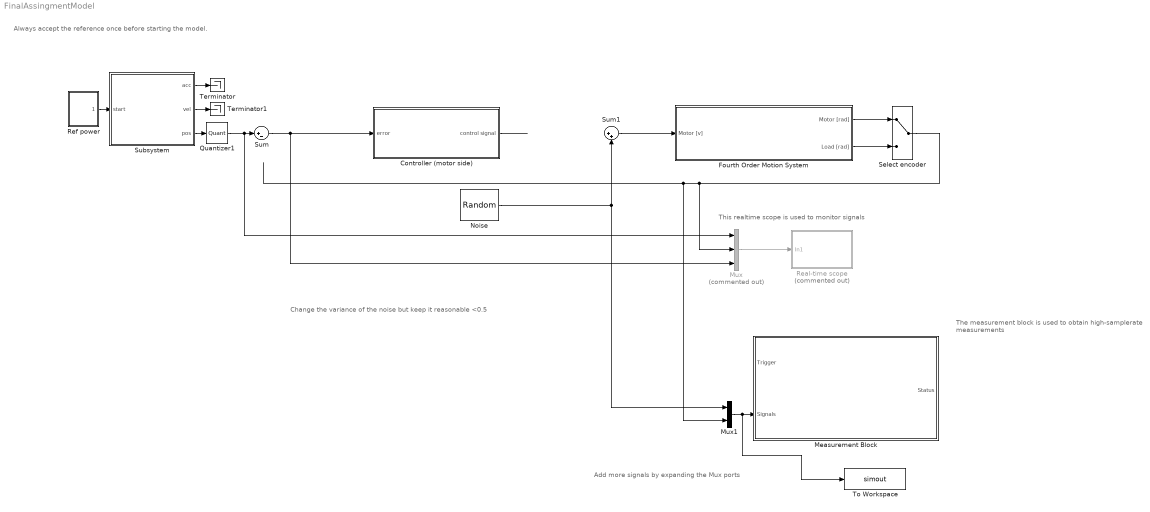
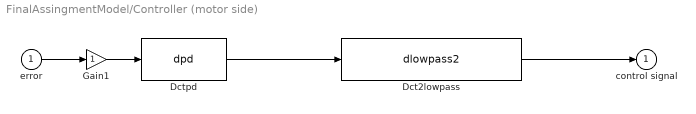
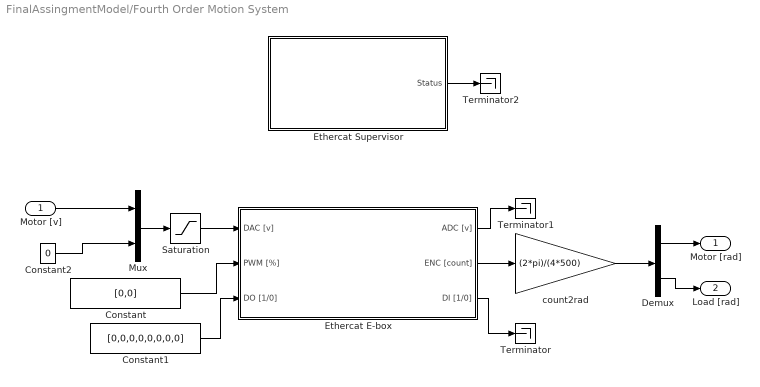
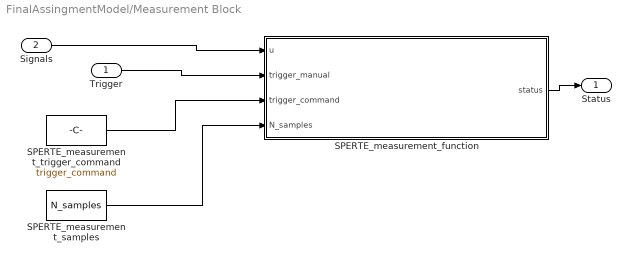
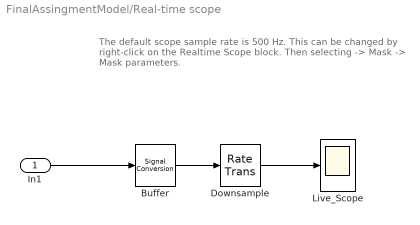
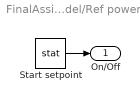
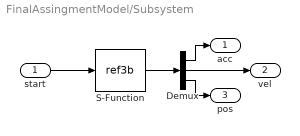
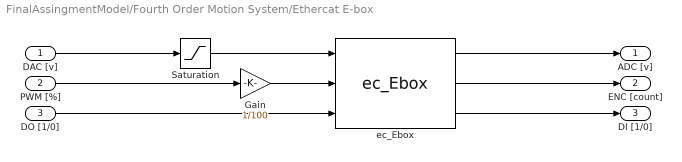
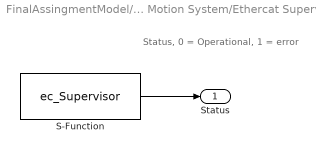
== matlab function FinalAssingmentModel/Measurement Block/SPERTE_measurement_function ==
function status = perform_measurement(u, trigger_manual, trigger_command, triggertype, N_samples)

%% Persistent variables
persistent fileID NF busy NS

% Init parameters
if isempty(NF)
    NF = int16(0);
end
if isempty(NS)
    NS = uint32(0);
end
if isempty(fileID)
    fileID = 0;
end
if isempty(busy)
    busy = uint8(0);
end

%% Check the triggers
if ( (triggertype == 0 && trigger_manual == 1) || (triggertype == 1 && trigger_command == 1) || (triggertype == 2 && (trigger_command == 1 || trigger_manual == 1) ) )
    if busy == 1
        % We are already busy, nothing to do
    else
        % We should start a new one
        fileID = fopen(sprintf('measurement_%d.bin',NF),'w');  
        NF = NF + 1;
        busy = uint8(1);
        NS = uint32(0);
    end
end

% We have started a measurement
if busy == 1
    if NS < N_samples 
        % Here we write the sample, in single precision float
        fwrite(fileID,u,'single');
        NS = NS + uint32(1);
    else
       % We have N samples already, we are done
       fclose(fileID);
       busy = uint8(0);
       NS = uint32(0);
    end
      
end
    % Output state
    status = uint8(busy);
end

/*
 * FinalAssingmentModel.c
 *
 * Academic License - for use in teaching, academic research, and meeting
 * course requirements at degree granting institutions only.  Not for
 * government, commercial, or other organizational use.
 *
 * Code generation for model "FinalAssingmentModel".
 *
 * Model version              : 7.2
 * Simulink Coder version : 9.6 (R2021b) 14-May-2021
 * C source code generated on : Wed Mar 26 12:49:07 2025
 *
 * Target selection: ert.tlc
 * Note: GRT includes extra infrastructure and instrumentation for prototyping
 * Embedded hardware selection: ARM Compatible->ARM Cortex
 * Code generation objectives: Unspecified
 * Validation result: Not run
 */

#include "FinalAssingmentModel.h"
#include "FinalAssingmentModel_private.h"
#include "FinalAssingmentModel_dt.h"

/* Block signals (default storage) */
B_FinalAssingmentModel_T FinalAssingmentModel_B;

/* Block states (default storage) */
DW_FinalAssingmentModel_T FinalAssingmentModel_DW;

/* Real-time model */
static RT_MODEL_FinalAssingmentModel_T FinalAssingmentModel_M_;
RT_MODEL_FinalAssingmentModel_T *const FinalAssingmentModel_M =
  &FinalAssingmentModel_M_;

/* Forward declaration for local functions */
static void FinalAssingmentM_emxInit_char_T(emxArray_char_T_FinalAssingme_T
  **pEmxArray, int32_T numDimensions);
static void FinalA_emxEnsureCapacity_char_T(emxArray_char_T_FinalAssingme_T
  *emxArray, int32_T oldNumel);
static void FinalAssingmentM_emxFree_char_T(emxArray_char_T_FinalAssingme_T
  **pEmxArray);
static int8_T FinalAssingmentModel_filedata(void);
static int8_T FinalAssingmentModel_cfopen(const emxArray_char_T_FinalAssingme_T *
  cfilename, const char_T *cpermission);
static int32_T FinalAssingmentModel_cfclose(real_T fid);
static void rate_monotonic_scheduler(void);

/*
 * Set which subrates need to run this base step (base rate always runs).
 * This function must be called prior to calling the model step function
 * in order to "remember" which rates need to run this base step.  The
 * buffering of events allows for overlapping preemption.
 */
void FinalAssingmentModel_SetEventsForThisBaseStep(boolean_T *eventFlags)
{
  /* Task runs when its counter is zero, computed via rtmStepTask macro */
  eventFlags[2] = ((boolean_T)rtmStepTask(FinalAssingmentModel_M, 2));
}

/*
 *         This function updates active task flag for each subrate
 *         and rate transition flags for tasks that exchange data.
 *         The function assumes rate-monotonic multitasking scheduler.
 *         The function must be called at model base rate so that
 *         the generated code self-manages all its subrates and rate
 *         transition flags.
 */
static void rate_monotonic_scheduler(void)
{
  /* To ensure a deterministic data transfer between two rates,
   * data is transferred at the priority of a fast task and the frequency
   * of the slow task.  The following flags indicate when the data transfer
   * happens.  That is, a rate interaction flag is set true when both rates
   * will run, and false otherwise.
   */

  /* tid 1 shares data with slower tid rate: 2 */
  if (FinalAssingmentModel_M->Timing.TaskCounters.TID[1] == 0) {
    FinalAssingmentModel_M->Timing.RateInteraction.TID1_2 =
      (FinalAssingmentModel_M->Timing.TaskCounters.TID[2] == 0);

    /* update PerTaskSampleHits matrix for non-inline sfcn */
    FinalAssingmentModel_M->Timing.perTaskSampleHits[5] =
      FinalAssingmentModel_M->Timing.RateInteraction.TID1_2;
  }

  /* Compute which subrates run during the next base time step.  Subrates
   * are an integer multiple of the base rate counter.  Therefore, the subtask
   * counter is reset when it reaches its limit (zero means run).
   */
  (FinalAssingmentModel_M->Timing.TaskCounters.TID[2])++;
  if ((FinalAssingmentModel_M->Timing.TaskCounters.TID[2]) > 7) {/* Sample time: [0.002s, 0.0s] */
    FinalAssingmentModel_M->Timing.TaskCounters.TID[2] = 0;
  }
}

real_T rt_urand_Upu32_Yd_f_pw_snf(uint32_T *u)
{
  uint32_T hi;
  uint32_T lo;

  /* Uniform random number generator (random number between 0 and 1)

     #define IA      16807                      magic multiplier = 7^5
     #define IM      2147483647                 modulus = 2^31-1
     #define IQ      127773                     IM div IA
     #define IR      2836                       IM modulo IA
     #define S       4.656612875245797e-10      reciprocal of 2^31-1
     test = IA * (seed % IQ) - IR * (seed/IQ)
     seed = test < 0 ? (test + IM) : test
     return (seed*S)
   */
  lo = *u % 127773U * 16807U;
  hi = *u / 127773U * 2836U;
  if (lo < hi) {
    *u = 2147483647U - (hi - lo);
  } else {
    *u = lo - hi;
  }

  return (real_T)*u * 4.6566128752457969E-10;
}

real_T rt_nrand_Upu32_Yd_f_pw_snf(uint32_T *u)
{
  real_T si;
  real_T sr;
  real_T y;

  /* Normal (Gaussian) random number generator */
  do {
    sr = 2.0 * rt_urand_Upu32_Yd_f_pw_snf(u) - 1.0;
    si = 2.0 * rt_urand_Upu32_Yd_f_pw_snf(u) - 1.0;
    si = sr * sr + si * si;
  } while (si > 1.0);

  y = sqrt(-2.0 * log(si) / si) * sr;
  return y;
}

static void FinalAssingmentM_emxInit_char_T(emxArray_char_T_FinalAssingme_T
  **pEmxArray, int32_T numDimensions)
{
  emxArray_char_T_FinalAssingme_T *emxArray;
  int32_T i;
  *pEmxArray = (emxArray_char_T_FinalAssingme_T *)malloc(sizeof
    (emxArray_char_T_FinalAssingme_T));
  emxArray = *pEmxArray;
  emxArray->data = (char_T *)NULL;
  emxArray->numDimensions = numDimensions;
  emxArray->size = (int32_T *)malloc(sizeof(int32_T) * numDimensions);
  emxArray->allocatedSize = 0;
  emxArray->canFreeData = true;
  for (i = 0; i < numDimensions; i++) {
    emxArray->size[i] = 0;
  }
}

static void FinalA_emxEnsureCapacity_char_T(emxArray_char_T_FinalAssingme_T
  *emxArray, int32_T oldNumel)
{
  int32_T i;
  int32_T newNumel;
  void *newData;
  if (oldNumel < 0) {
    oldNumel = 0;
  }

  newNumel = 1;
  for (i = 0; i < emxArray->numDimensions; i++) {
    newNumel *= emxArray->size[i];
  }

  if (newNumel > emxArray->allocatedSize) {
    i = emxArray->allocatedSize;
    if (i < 16) {
      i = 16;
    }

    while (i < newNumel) {
      if (i > 1073741823) {
        i = MAX_int32_T;
      } else {
        i <<= 1;
      }
    }

    newData = calloc((uint32_T)i, sizeof(char_T));
    if (emxArray->data != NULL) {
      memcpy(newData, emxArray->data, sizeof(char_T) * oldNumel);
      if (emxArray->canFreeData) {
        free(emxArray->data);
      }
    }

    emxArray->data = (char_T *)newData;
    emxArray->allocatedSize = i;
    emxArray->canFreeData = true;
  }
}

static void FinalAssingmentM_emxFree_char_T(emxArray_char_T_FinalAssingme_T
  **pEmxArray)
{
  if (*pEmxArray != (emxArray_char_T_FinalAssingme_T *)NULL) {
    if (((*pEmxArray)->data != (char_T *)NULL) && (*pEmxArray)->canFreeData) {
      free((*pEmxArray)->data);
    }

    free((*pEmxArray)->size);
    free(*pEmxArray);
    *pEmxArray = (emxArray_char_T_FinalAssingme_T *)NULL;
  }
}

/* Function for MATLAB Function: '<S3>/SPERTE_measurement_function' */
static int8_T FinalAssingmentModel_filedata(void)
{
  int32_T k;
  int8_T f;
  boolean_T exitg1;
  f = 0;
  k = 1;
  exitg1 = false;
  while ((!exitg1) && (k - 1 < 20)) {
    if (FinalAssingmentModel_DW.eml_openfiles[(int8_T)k - 1] == NULL) {
      f = (int8_T)k;
      exitg1 = true;
    } else {
      k++;
    }
  }

  return f;
}

/* Function for MATLAB Function: '<S3>/SPERTE_measurement_function' */
static int8_T FinalAssingmentModel_cfopen(const emxArray_char_T_FinalAssingme_T *
  cfilename, const char_T *cpermission)
{
  emxArray_char_T_FinalAssingme_T *ccfilename;
  int32_T i;
  int32_T loop_ub;
  int8_T fileid;
  int8_T j;
  fileid = -1;
  j = FinalAssingmentModel_filedata();
  if (j >= 1) {
    FinalAssingmentM_emxInit_char_T(&ccfilename, 2);
    i = ccfilename->size[0] * ccfilename->size[1];
    ccfilename->size[0] = 1;
    ccfilename->size[1] = cfilename->size[1] + 1;
    FinalA_emxEnsureCapacity_char_T(ccfilename, i);
    loop_ub = cfilename->size[1];
    for (i = 0; i < loop_ub; i++) {
      ccfilename->data[i] = cfilename->data[i];
    }

    ccfilename->data[cfilename->size[1]] = '\x00';
    FinalAssingmentModel_B.filestar_m = fopen(&ccfilename->data[0], cpermission);
    FinalAssingmentM_emxFree_char_T(&ccfilename);
    if (FinalAssingmentModel_B.filestar_m != NULL) {
      FinalAssingmentModel_DW.eml_openfiles[j - 1] =
        FinalAssingmentModel_B.filestar_m;
      FinalAssingmentModel_DW.eml_autoflush[j - 1] = true;
      i = j + 2;
      if (j + 2 > 127) {
        i = 127;
      }

      fileid = (int8_T)i;
    }
  }

  return fileid;
}

real_T rt_roundd_snf(real_T u)
{
  real_T y;
  if (fabs(u) < 4.503599627370496E+15) {
    if (u >= 0.5) {
      y = floor(u + 0.5);
    } else if (u > -0.5) {
      y = u * 0.0;
    } else {
      y = ceil(u - 0.5);
    }
  } else {
    y = u;
  }

  return y;
}

/* Function for MATLAB Function: '<S3>/SPERTE_measurement_function' */
static int32_T FinalAssingmentModel_cfclose(real_T fid)
{
  FILE* filestar;
  int32_T cst;
  int32_T st;
  int8_T b_fileid;
  int8_T fileid;
  st = -1;
  fileid = (int8_T)rt_roundd_snf(fid);
  if ((fileid < 0) || (fid != fileid)) {
    fileid = -1;
  }

  b_fileid = fileid;
  if (fileid < 0) {
    b_fileid = -1;
  }

  if (b_fileid >= 3) {
    filestar = FinalAssingmentModel_DW.eml_openfiles[b_fileid - 3];
  } else if (b_fileid == 0) {
    filestar = stdin;
  } else if (b_fileid == 1) {
    filestar = stdout;
  } else if (b_fileid == 2) {
    filestar = stderr;
  } else {
    filestar = NULL;
  }

  if ((filestar != NULL) && (fileid >= 3)) {
    cst = fclose(filestar);
    if (cst == 0) {
      st = 0;
      FinalAssingmentModel_DW.eml_openfiles[fileid - 3] = NULL;
      FinalAssingmentModel_DW.eml_autoflush[fileid - 3] = true;
    }
  }

  return st;
}

/* Model step function for TID0 */
void FinalAssingmentModel_step0(void)  /* Sample time: [0.0s, 0.0s] */
{
  emxArray_char_T_FinalAssingme_T *charStr;
  emxArray_char_T_FinalAssingme_T *charStr_0;
  int32_T tmp;
  uint32_T qY;
  int8_T b_fileid;
  boolean_T autoflush;

  {                                    /* Sample time: [0.0s, 0.0s] */
    rate_monotonic_scheduler();
  }

  /* RandomNumber: '<Root>/Noise' */
  FinalAssingmentModel_B.Noise = FinalAssingmentModel_DW.NextOutput;

  /* S-Function (ec_Supervisor): '<S8>/S-Function' */

  /* Level2 S-Function Block: '<S8>/S-Function' (ec_Supervisor) */
  {
    SimStruct *rts = FinalAssingmentModel_M->childSfunctions[0];
    sfcnOutputs(rts,0);
  }

  /* S-Function (ec_Ebox): '<S7>/ec_Ebox' */

  /* Level2 S-Function Block: '<S7>/ec_Ebox' (ec_Ebox) */
  {
    SimStruct *rts = FinalAssingmentModel_M->childSfunctions[1];
    sfcnOutputs(rts,0);
  }

  /* ManualSwitch: '<Root>/Select encoder' */
  if (FinalAssingmentModel_P.Selectencoder_CurrentSetting == 1) {
    /* ManualSwitch: '<Root>/Select encoder' incorporates:
     *  Gain: '<S2>/count2rad'
     */
    FinalAssingmentModel_B.Selectencoder = FinalAssingmentModel_P.count2rad_Gain
      * FinalAssingmentModel_B.ec_Ebox_o2[0];
  } else {
    /* ManualSwitch: '<Root>/Select encoder' incorporates:
     *  Gain: '<S2>/count2rad'
     */
    FinalAssingmentModel_B.Selectencoder = FinalAssingmentModel_P.count2rad_Gain
      * FinalAssingmentModel_B.ec_Ebox_o2[1];
  }

  /* End of ManualSwitch: '<Root>/Select encoder' */

  /* MATLAB Function: '<S3>/SPERTE_measurement_function' incorporates:
   *  Constant: '<S3>/SPERTE_measurement_samples'
   *  Constant: '<S3>/SPERTE_measurement_trigger_command'
   *  SignalConversion generated from: '<S9>/ SFunction '
   */
  if ((((FinalAssingmentModel_P.MeasurementBlock_triggertype == 1) &&
        (FinalAssingmentModel_P.MeasurementBlock_trigger_comman == 1)) ||
       ((FinalAssingmentModel_P.MeasurementBlock_triggertype == 2) &&
        (FinalAssingmentModel_P.MeasurementBlock_trigger_comman == 1))) &&
      (FinalAssingmentModel_DW.busy != 1)) {
    FinalAssingmentM_emxInit_char_T(&charStr, 2);
    FinalAssingmentModel_B.nbytes = (int32_T)snprintf(NULL, 0,
      "measurement_%d.bin", FinalAssingmentModel_DW.NF) + 1;
    tmp = charStr->size[0] * charStr->size[1];
    charStr->size[0] = 1;
    charStr->size[1] = FinalAssingmentModel_B.nbytes;
    FinalA_emxEnsureCapacity_char_T(charStr, tmp);
    snprintf(&charStr->data[0], (size_t)FinalAssingmentModel_B.nbytes,
             "measurement_%d.bin", FinalAssingmentModel_DW.NF);
    if (1 > FinalAssingmentModel_B.nbytes - 1) {
      FinalAssingmentModel_B.loop_ub = -1;
    } else {
      FinalAssingmentModel_B.loop_ub = FinalAssingmentModel_B.nbytes - 2;
    }

    FinalAssingmentM_emxInit_char_T(&charStr_0, 2);
    tmp = charStr_0->size[0] * charStr_0->size[1];
    charStr_0->size[0] = 1;
    charStr_0->size[1] = FinalAssingmentModel_B.loop_ub + 1;
    FinalA_emxEnsureCapacity_char_T(charStr_0, tmp);
    for (FinalAssingmentModel_B.nbytes = 0; FinalAssingmentModel_B.nbytes <=
         FinalAssingmentModel_B.loop_ub; FinalAssingmentModel_B.nbytes++) {
      charStr_0->data[FinalAssingmentModel_B.nbytes] = charStr->
        data[FinalAssingmentModel_B.nbytes];
    }

    FinalAssingmentM_emxFree_char_T(&charStr);
    b_fileid = FinalAssingmentModel_cfopen(charStr_0, "wb");
    FinalAssingmentModel_DW.fileID = b_fileid;
    FinalAssingmentModel_B.nbytes = FinalAssingmentModel_DW.NF + 1;
    FinalAssingmentM_emxFree_char_T(&charStr_0);
    if (FinalAssingmentModel_DW.NF + 1 > 32767) {
      FinalAssingmentModel_B.nbytes = 32767;
    }

    FinalAssingmentModel_DW.NF = (int16_T)FinalAssingmentModel_B.nbytes;
    FinalAssingmentModel_DW.busy = 1U;
    FinalAssingmentModel_DW.NS = 0U;
  }

  if (FinalAssingmentModel_DW.busy == 1) {
    if (FinalAssingmentModel_DW.NS <
        FinalAssingmentModel_P.MeasurementBlock_N_samples) {
      b_fileid = (int8_T)rt_roundd_snf(FinalAssingmentModel_DW.fileID);
      if ((b_fileid < 0) || (FinalAssingmentModel_DW.fileID != b_fileid)) {
        b_fileid = -1;
      }

      if (b_fileid >= 3) {
        FinalAssingmentModel_B.filestar =
          FinalAssingmentModel_DW.eml_openfiles[b_fileid - 3];
        autoflush = FinalAssingmentModel_DW.eml_autoflush[b_fileid - 3];
      } else if (b_fileid == 0) {
        FinalAssingmentModel_B.filestar = stdin;
        autoflush = true;
      } else if (b_fileid == 1) {
        FinalAssingmentModel_B.filestar = stdout;
        autoflush = true;
      } else if (b_fileid == 2) {
        FinalAssingmentModel_B.filestar = stderr;
        autoflush = true;
      } else {
        FinalAssingmentModel_B.filestar = NULL;
        autoflush = true;
      }

      if (!(FinalAssingmentModel_DW.fileID != 0.0)) {
        FinalAssingmentModel_B.filestar = NULL;
      }

      if (!(FinalAssingmentModel_B.filestar == NULL)) {
        FinalAssingmentModel_B.xout[0] = (real32_T)FinalAssingmentModel_B.Noise;
        FinalAssingmentModel_B.xout[1] = (real32_T)
          FinalAssingmentModel_B.Selectencoder;
        FinalAssingmentModel_B.bytesOutSizet = fwrite
          (&FinalAssingmentModel_B.xout[0], sizeof(real32_T), (size_t)2,
           FinalAssingmentModel_B.filestar);
        if (((real_T)FinalAssingmentModel_B.bytesOutSizet > 0.0) && autoflush) {
          fflush(FinalAssingmentModel_B.filestar);
        }
      }

      qY = FinalAssingmentModel_DW.NS + 1U;
      if (FinalAssingmentModel_DW.NS + 1U < FinalAssingmentModel_DW.NS) {
        qY = MAX_uint32_T;
      }

      FinalAssingmentModel_DW.NS = qY;
    } else {
      FinalAssingmentModel_cfclose(FinalAssingmentModel_DW.fileID);
      FinalAssingmentModel_DW.busy = 0U;
      FinalAssingmentModel_DW.NS = 0U;
    }
  }

  /* End of MATLAB Function: '<S3>/SPERTE_measurement_function' */

  /* Constant: '<S5>/Start setpoint' */
  FinalAssingmentModel_B.Startsetpoint = FinalAssingmentModel_P.Refpower_stat;

  /* S-Function (ref3b): '<S6>/S-Function' */

  /* Level2 S-Function Block: '<S6>/S-Function' (ref3b) */
  {
    SimStruct *rts = FinalAssingmentModel_M->childSfunctions[2];
    sfcnOutputs(rts,0);
  }

  /* Quantizer: '<Root>/Quantizer1' */
  FinalAssingmentModel_B.Quantizer1 = rt_roundd_snf
    (FinalAssingmentModel_B.SFunction_c[2] /
     FinalAssingmentModel_P.Quantizer1_Interval) *
    FinalAssingmentModel_P.Quantizer1_Interval;

  /* SignalConversion: '<S4>/Buffer' incorporates:
   *  Sum: '<Root>/Sum'
   */
  FinalAssingmentModel_B.Buffer[0] = FinalAssingmentModel_B.Quantizer1;
  FinalAssingmentModel_B.Buffer[1] = FinalAssingmentModel_B.Selectencoder;
  FinalAssingmentModel_B.Buffer[2] = FinalAssingmentModel_B.Quantizer1;

  /* RateTransition: '<S4>/Downsample' */
  if (FinalAssingmentModel_M->Timing.RateInteraction.TID1_2) {
    FinalAssingmentModel_DW.Downsample_Buffer[0] =
      FinalAssingmentModel_B.Buffer[0];
    FinalAssingmentModel_DW.Downsample_Buffer[1] =
      FinalAssingmentModel_B.Buffer[1];
    FinalAssingmentModel_DW.Downsample_Buffer[2] =
      FinalAssingmentModel_B.Buffer[2];
  }

  /* End of RateTransition: '<S4>/Downsample' */

  /* SignalConversion generated from: '<Root>/To Workspace' */
  FinalAssingmentModel_B.TmpSignalConversionAtToWorkspac[0] =
    FinalAssingmentModel_B.Noise;
  FinalAssingmentModel_B.TmpSignalConversionAtToWorkspac[1] =
    FinalAssingmentModel_B.Selectencoder;

  /* Gain: '<S1>/Gain1' incorporates:
   *  Sum: '<Root>/Sum'
   */
  FinalAssingmentModel_B.Gain1 = FinalAssingmentModel_P.Gain1_Gain *
    FinalAssingmentModel_B.Quantizer1;

  /* S-Function (dpd): '<S1>/Dctpd' */

  /* Level2 S-Function Block: '<S1>/Dctpd' (dpd) */
  {
    SimStruct *rts = FinalAssingmentModel_M->childSfunctions[3];
    sfcnOutputs(rts,0);
  }

  /* S-Function (dlowpass2): '<S1>/Dct2lowpass' */

  /* Level2 S-Function Block: '<S1>/Dct2lowpass' (dlowpass2) */
  {
    SimStruct *rts = FinalAssingmentModel_M->childSfunctions[4];
    sfcnOutputs(rts,0);
  }

  /* Constant: '<S2>/Constant1' */
  memcpy(&FinalAssingmentModel_B.Constant1[0],
         &FinalAssingmentModel_P.Constant1_Value[0], sizeof(real_T) << 3U);

  /* Gain: '<S7>/Gain' incorporates:
   *  Constant: '<S2>/Constant'
   */
  FinalAssingmentModel_B.Gain[0] = FinalAssingmentModel_P.Gain_Gain *
    FinalAssingmentModel_P.Constant_Value[0];
  FinalAssingmentModel_B.Gain[1] = FinalAssingmentModel_P.Gain_Gain *
    FinalAssingmentModel_P.Constant_Value[1];

  /* Saturate: '<S2>/Saturation' */
  if (FinalAssingmentModel_B.Noise > FinalAssingmentModel_P.Saturation_UpperSat)
  {
    FinalAssingmentModel_B.Quantizer1 =
      FinalAssingmentModel_P.Saturation_UpperSat;
  } else if (FinalAssingmentModel_B.Noise <
             FinalAssingmentModel_P.Saturation_LowerSat) {
    FinalAssingmentModel_B.Quantizer1 =
      FinalAssingmentModel_P.Saturation_LowerSat;
  } else {
    FinalAssingmentModel_B.Quantizer1 = FinalAssingmentModel_B.Noise;
  }

  /* Saturate: '<S7>/Saturation' */
  if (FinalAssingmentModel_B.Quantizer1 >
      FinalAssingmentModel_P.Saturation_UpperSat_d) {
    /* Saturate: '<S7>/Saturation' */
    FinalAssingmentModel_B.Saturation[0] =
      FinalAssingmentModel_P.Saturation_UpperSat_d;
  } else if (FinalAssingmentModel_B.Quantizer1 <
             FinalAssingmentModel_P.Saturation_LowerSat_e) {
    /* Saturate: '<S7>/Saturation' */
    FinalAssingmentModel_B.Saturation[0] =
      FinalAssingmentModel_P.Saturation_LowerSat_e;
  } else {
    /* Saturate: '<S7>/Saturation' */
    FinalAssingmentModel_B.Saturation[0] = FinalAssingmentModel_B.Quantizer1;
  }

  /* Saturate: '<S2>/Saturation' incorporates:
   *  Constant: '<S2>/Constant2'
   */
  if (FinalAssingmentModel_P.Constant2_Value >
      FinalAssingmentModel_P.Saturation_UpperSat) {
    FinalAssingmentModel_B.Quantizer1 =
      FinalAssingmentModel_P.Saturation_UpperSat;
  } else if (FinalAssingmentModel_P.Constant2_Value <
             FinalAssingmentModel_P.Saturation_LowerSat) {
    FinalAssingmentModel_B.Quantizer1 =
      FinalAssingmentModel_P.Saturation_LowerSat;
  } else {
    FinalAssingmentModel_B.Quantizer1 = FinalAssingmentModel_P.Constant2_Value;
  }

  /* Saturate: '<S7>/Saturation' */
  if (FinalAssingmentModel_B.Quantizer1 >
      FinalAssingmentModel_P.Saturation_UpperSat_d) {
    /* Saturate: '<S7>/Saturation' */
    FinalAssingmentModel_B.Saturation[1] =
      FinalAssingmentModel_P.Saturation_UpperSat_d;
  } else if (FinalAssingmentModel_B.Quantizer1 <
             FinalAssingmentModel_P.Saturation_LowerSat_e) {
    /* Saturate: '<S7>/Saturation' */
    FinalAssingmentModel_B.Saturation[1] =
      FinalAssingmentModel_P.Saturation_LowerSat_e;
  } else {
    /* Saturate: '<S7>/Saturation' */
    FinalAssingmentModel_B.Saturation[1] = FinalAssingmentModel_B.Quantizer1;
  }

  /* Update for RandomNumber: '<Root>/Noise' */
  FinalAssingmentModel_DW.NextOutput = rt_nrand_Upu32_Yd_f_pw_snf
    (&FinalAssingmentModel_DW.RandSeed) * FinalAssingmentModel_P.Noise_StdDev +
    FinalAssingmentModel_P.Noise_Mean;

  /* External mode */
  rtExtModeUploadCheckTrigger(3);
  rtExtModeUpload(1, (real_T)FinalAssingmentModel_M->Timing.t[0]);

  /* signal main to stop simulation */
  {                                    /* Sample time: [0.0s, 0.0s] */
    if ((rtmGetTFinal(FinalAssingmentModel_M)!=-1) &&
        !((rtmGetTFinal(FinalAssingmentModel_M)-FinalAssingmentModel_M->
           Timing.t[0]) > FinalAssingmentModel_M->Timing.t[0] * (DBL_EPSILON)))
    {
      rtmSetErrorStatus(FinalAssingmentModel_M, "Simulation finished");
    }

    if (rtmGetStopRequested(FinalAssingmentModel_M)) {
      rtmSetErrorStatus(FinalAssingmentModel_M, "Simulation finished");
    }
  }

  /* Update absolute time */
  /* The "clockTick0" counts the number of times the code of this task has
   * been executed. The absolute time is the multiplication of "clockTick0"
   * and "Timing.stepSize0". Size of "clockTick0" ensures timer will not
   * overflow during the application lifespan selected.
   * Timer of this task consists of two 32 bit unsigned integers.
   * The two integers represent the low bits Timing.clockTick0 and the high bits
   * Timing.clockTickH0. When the low bit overflows to 0, the high bits increment.
   */
  if (!(++FinalAssingmentModel_M->Timing.clockTick0)) {
    ++FinalAssingmentModel_M->Timing.clockTickH0;
  }

  FinalAssingmentModel_M->Timing.t[0] =
    FinalAssingmentModel_M->Timing.clockTick0 *
    FinalAssingmentModel_M->Timing.stepSize0 +
    FinalAssingmentModel_M->Timing.clockTickH0 *
    FinalAssingmentModel_M->Timing.stepSize0 * 4294967296.0;

  /* Update absolute time */
  /* The "clockTick1" counts the number of times the code of this task has
   * been executed. The absolute time is the multiplication of "clockTick1"
   * and "Timing.stepSize1". Size of "clockTick1" ensures timer will not
   * overflow during the application lifespan selected.
   * Timer of this task consists of two 32 bit unsigned integers.
   * The two integers represent the low bits Timing.clockTick1 and the high bits
   * Timing.clockTickH1. When the low bit overflows to 0, the high bits increment.
   */
  if (!(++FinalAssingmentModel_M->Timing.clockTick1)) {
    ++FinalAssingmentModel_M->Timing.clockTickH1;
  }

  FinalAssingmentModel_M->Timing.t[1] =
    FinalAssingmentModel_M->Timing.clockTick1 *
    FinalAssingmentModel_M->Timing.stepSize1 +
    FinalAssingmentModel_M->Timing.clockTickH1 *
    FinalAssingmentModel_M->Timing.stepSize1 * 4294967296.0;
}

/* Model step function for TID2 */
void FinalAssingmentModel_step2(void)  /* Sample time: [0.002s, 0.0s] */
{
  /* RateTransition: '<S4>/Downsample' */
  FinalAssingmentModel_B.Downsample[0] =
    FinalAssingmentModel_DW.Downsample_Buffer[0];
  FinalAssingmentModel_B.Downsample[1] =
    FinalAssingmentModel_DW.Downsample_Buffer[1];
  FinalAssingmentModel_B.Downsample[2] =
    FinalAssingmentModel_DW.Downsample_Buffer[2];
  rtExtModeUpload(2, (real_T)(((FinalAssingmentModel_M->Timing.clockTick2+
    FinalAssingmentModel_M->Timing.clockTickH2* 4294967296.0)) * 0.002));

  /* Update absolute time */
  /* The "clockTick2" counts the number of times the code of this task has
   * been executed. The resolution of this integer timer is 0.002, which is the step size
   * of the task. Size of "clockTick2" ensures timer will not overflow during the
   * application lifespan selected.
   * Timer of this task consists of two 32 bit unsigned integers.
   * The two integers represent the low bits Timing.clockTick2 and the high bits
   * Timing.clockTickH2. When the low bit overflows to 0, the high bits increment.
   */
  FinalAssingmentModel_M->Timing.clockTick2++;
  if (!FinalAssingmentModel_M->Timing.clockTick2) {
    FinalAssingmentModel_M->Timing.clockTickH2++;
  }
}

/* Use this function only if you need to maintain compatibility with an existing static main program. */
void FinalAssingmentModel_step(int_T tid)
{
  switch (tid) {
   case 0 :
    FinalAssingmentModel_step0();
    break;

   case 2 :
    FinalAssingmentModel_step2();
    break;

   default :
    /* do nothing */
    break;
  }
}
